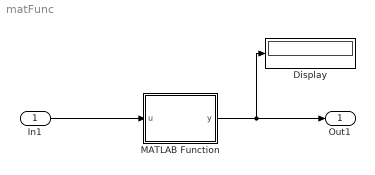
== matlab function matFunc/MATLAB Function ==
function y = fcn(u)
    y=1;
    for i = 1:u %looping through values from 1 : n to multiply each value;
        y = y*i; %multiplying with our previous values.
    end
end

/*
 * File: matFunc.c
 *
 * Code generated for Simulink model 'matFunc'.
 *
 * Model version                  : 1.5
 * Simulink Coder version         : 9.0 (R2018b) 24-May-2018
 * C/C++ source code generated on : Sat Feb 26 09:33:23 2022
 *
 * Target selection: ert.tlc
 * Embedded hardware selection: Intel->x86-64 (Windows64)
 * Code generation objectives: Unspecified
 * Validation result: Not run
 */

#include "matFunc.h"
#include "matFunc_private.h"

/* External inputs (root inport signals with default storage) */
ExtU_matFunc_T matFunc_U;

/* External outputs (root outports fed by signals with default storage) */
ExtY_matFunc_T matFunc_Y;

/* Real-time model */
RT_MODEL_matFunc_T matFunc_M_;
RT_MODEL_matFunc_T *const matFunc_M = &matFunc_M_;

/* Model step function */
void matFunc_step(void)
{
  int32_T i;

  /* MATLAB Function: '<Root>/MATLAB Function' incorporates:
   *  Inport: '<Root>/In1'
   */
  matFunc_Y.Out1 = 1.0;
  for (i = 0; i < (int32_T)matFunc_U.In1; i++) {
    matFunc_Y.Out1 *= 1.0 + (real_T)i;
  }

  /* End of MATLAB Function: '<Root>/MATLAB Function' */
}
